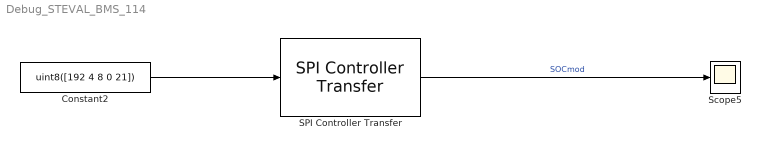
/*
 * Academic License - for use in teaching, academic research, and meeting
 * course requirements at degree granting institutions only.  Not for
 * government, commercial, or other organizational use.
 *
 * File: Debug_STEVAL_BMS_114.c
 *
 * Code generated for Simulink model 'Debug_STEVAL_BMS_114'.
 *
 * Model version                  : 1.67
 * Simulink Coder version         : 25.2 (R2025b) 28-Jul-2025
 * C/C++ source code generated on : Mon Jun 15 19:57:48 2026
 *
 * Target selection: ert.tlc
 * Embedded hardware selection: ARM Compatible->ARM Cortex-M
 * Code generation objectives: Unspecified
 * Validation result: Not run
 */

#include "Debug_STEVAL_BMS_114.h"
#include "Debug_STEVAL_BMS_114_types.h"
#include "rtwtypes.h"
#include "mw_stm32_spi_ll.h"
#include "Debug_STEVAL_BMS_114_private.h"

/* Block signals (default storage) */
B_Debug_STEVAL_BMS_114_T Debug_STEVAL_BMS_114_B;

/* Block states (default storage) */
DW_Debug_STEVAL_BMS_114_T Debug_STEVAL_BMS_114_DW;

/* Real-time model */
static RT_MODEL_Debug_STEVAL_BMS_114_T Debug_STEVAL_BMS_114_M_;
RT_MODEL_Debug_STEVAL_BMS_114_T *const Debug_STEVAL_BMS_114_M =
  &Debug_STEVAL_BMS_114_M_;

/* Forward declaration for local functions */
static void Debug_STE_SPIDrvBlock_setupImpl(stm32cube_blocks_SPIControlle_T *obj);
static void Debug_STE_SPIDrvBlock_setupImpl(stm32cube_blocks_SPIControlle_T *obj)
{
  MW_STM32_SPI_FIFO_Access_type b_dataType;
  STM32_SPI_Struct_T * spiBlock;
  STM32_SPI_ModuleStruct_T c;

  /* Start for MATLABSystem: '<Root>/SPI Controller Transfer' */
  c.buffer.rxBufferPtr = NULL;
  c.buffer.txBufferPtr = NULL;
  c.PeripheralPtr = SPI1;
  c.enableRxOrTx = 0U;
  c.buffer.rxBufferSize = 0U;
  c.buffer.txBufferSize = 0U;

  /* Start for MATLABSystem: '<Root>/SPI Controller Transfer' */
  c.rxMode = SPI_RX_POLLING_MODE;
  c.txMode = SPI_TX_POLLING_MODE;
  c.rxdmaPeripheralPtr = NULL;
  c.rxdmastream = 0;
  c.txdmaPeripheralPtr = NULL;
  c.txdmastream = 0;
  obj->MW_SPI_BlockStruct.h_spi = NULL;
  obj->MW_SPI_BlockStruct.gpioPort = GPIOB;
  b_dataType = FIFO_ACCESS_8BIT;

  /* Start for MATLABSystem: '<Root>/SPI Controller Transfer' */
  obj->MW_SPI_BlockStruct.gpioPin = 6U;
  obj->MW_SPI_BlockStruct.chipSelectActiveLow = true;
  obj->MW_SPI_BlockStruct.dataType = b_dataType;
  obj->MW_SPI_BlockStruct.dataLength = 1.0;
  spiBlock = (STM32_SPI_Struct_T *)(&obj->MW_SPI_BlockStruct);
  obj->MW_SPI_HANDLE = SPI_STM32_Init(&c, spiBlock);
  MW_STM32_SPI_SetFormat(obj->MW_SPI_HANDLE, 0U, 1792U, MW_SPI_MODE_2);
}

/* Model step function */
void Debug_STEVAL_BMS_114_step(void)
{
  GPIO_TypeDef * portNameLoc;
  uint16_T status;

  /* MATLABSystem: '<Root>/SPI Controller Transfer' incorporates:
   *  Constant: '<Root>/Constant2'
   * */
  status = MW_STM32_SPI_SetFormat(Debug_STEVAL_BMS_114_DW.obj.MW_SPI_HANDLE, 0U,
    1792U, MW_SPI_MODE_2);
  if (status == 0) {
    portNameLoc = GPIOB;
    LL_GPIO_ResetOutputPin(portNameLoc, 64U);
    MW_SPI_ControllerWriteRead_Databits
      (Debug_STEVAL_BMS_114_DW.obj.MW_SPI_HANDLE,
       &Debug_STEVAL_BMS_114_P.Constant2_Value[0],
       &Debug_STEVAL_BMS_114_B.SOCmod[0], 0, 5U, 0, 1U);
    LL_GPIO_SetOutputPin(portNameLoc, 64U);
  }

  /* End of MATLABSystem: '<Root>/SPI Controller Transfer' */

  /* Update absolute time for base rate */
  /* The "clockTick0" counts the number of times the code of this task has
   * been executed. The absolute time is the multiplication of "clockTick0"
   * and "Timing.stepSize0". Size of "clockTick0" ensures timer will not
   * overflow during the application lifespan selected.
   */
  Debug_STEVAL_BMS_114_M->Timing.taskTime0 =
    ((time_T)(++Debug_STEVAL_BMS_114_M->Timing.clockTick0)) *
    Debug_STEVAL_BMS_114_M->Timing.stepSize0;
}
